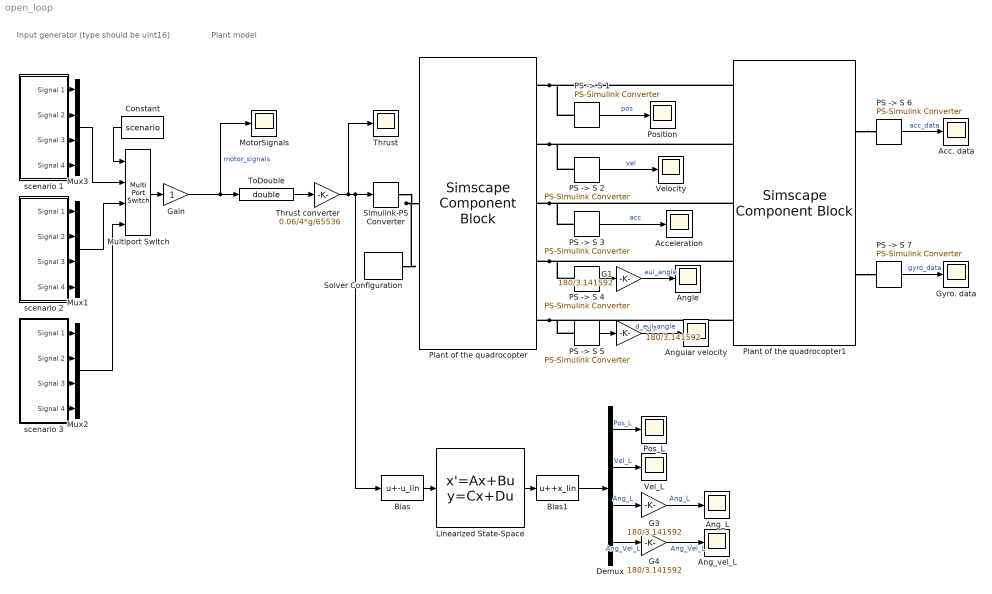
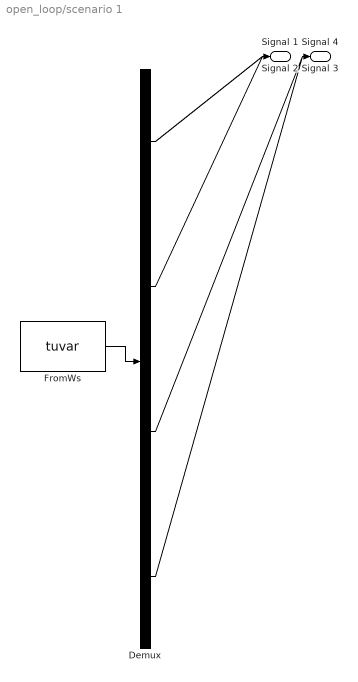
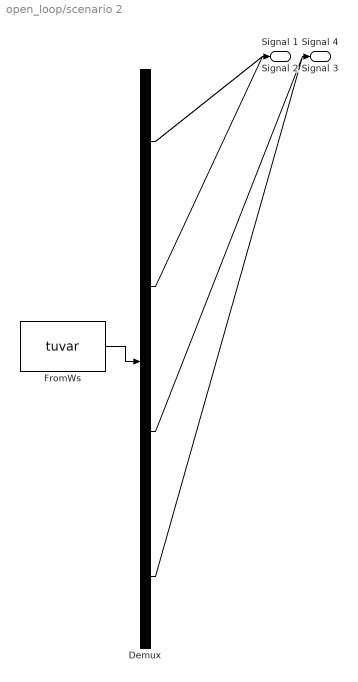
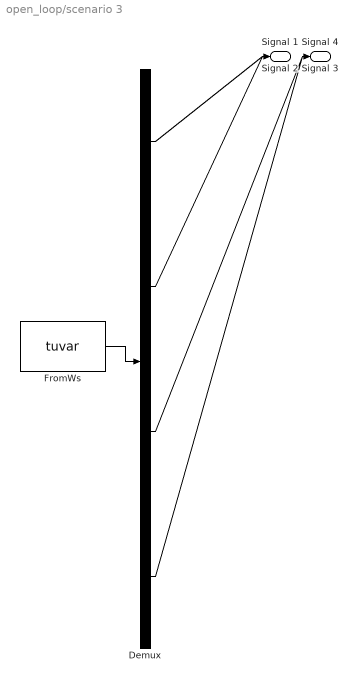
/*
 * open_loop.c
 *
 * Academic License - for use in teaching, academic research, and meeting
 * course requirements at degree granting institutions only.  Not for
 * government, commercial, or other organizational use.
 *
 * Code generation for model "open_loop".
 *
 * Model version              : 1.107
 * Simulink Coder version : 9.1 (R2019a) 23-Nov-2018
 * C source code generated on : Wed May  1 18:27:18 2019
 *
 * Target selection: grt.tlc
 * Note: GRT includes extra infrastructure and instrumentation for prototyping
 * Embedded hardware selection: Intel->x86-64 (Windows64)
 * Code generation objectives: Unspecified
 * Validation result: Not run
 */

#include "open_loop.h"
#include "open_loop_private.h"

/* Block signals (default storage) */
B_open_loop_T open_loop_B;

/* Continuous states */
X_open_loop_T open_loop_X;

/* Mass Matrices */
MassMatrix_open_loop_T open_loop_MassMatrix;

/* Block states (default storage) */
DW_open_loop_T open_loop_DW;

/* Real-time model */
RT_MODEL_open_loop_T open_loop_M_;
RT_MODEL_open_loop_T *const open_loop_M = &open_loop_M_;

/* ForcingFunction for root system: '<Root>' */
void open_loop_forcingfunction(void)
{
  NeslSimulationData *simulationData;
  real_T time;
  boolean_T tmp;
  real_T tmp_0[16];
  int_T tmp_1[5];
  NeuDiagnosticManager *diagnosticManager;
  NeuDiagnosticTree *diagnosticTree;
  char *msg;
  int_T is;
  int_T ci;
  XDot_open_loop_T *_rtXdot;
  _rtXdot = ((XDot_open_loop_T *) open_loop_M->derivs);

  /* ForcingFunction for SimscapeExecutionBlock: '<S21>/STATE_1' */
  simulationData = (NeslSimulationData *)open_loop_DW.STATE_1_SimData;
  time = open_loop_M->Timing.t[0];
  simulationData->mData->mTime.mN = 1;
  simulationData->mData->mTime.mX = &time;
  simulationData->mData->mContStates.mN = 110;
  simulationData->mData->mContStates.mX =
    &open_loop_X.open_loopPlant_of_the_quadrocop[0];
  simulationData->mData->mDiscStates.mN = 0;
  simulationData->mData->mDiscStates.mX = &open_loop_DW.STATE_1_Discrete;
  simulationData->mData->mModeVector.mN = 5;
  simulationData->mData->mModeVector.mX = &open_loop_DW.STATE_1_Modes[0];
  tmp = false;
  simulationData->mData->mFoundZcEvents = tmp;
  simulationData->mData->mIsMajorTimeStep = rtmIsMajorTimeStep(open_loop_M);
  tmp = false;
  simulationData->mData->mIsSolverAssertCheck = tmp;
  simulationData->mData->mIsSolverCheckingCIC = false;
  tmp = rtsiIsSolverComputingJacobian(&open_loop_M->solverInfo);
  simulationData->mData->mIsComputingJacobian = tmp;
  simulationData->mData->mIsEvaluatingF0 = false;
  simulationData->mData->mIsSolverRequestingReset = false;
  tmp_1[0] = 0;
  tmp_0[0] = open_loop_B.INPUT_1_1_1[0];
  tmp_0[1] = open_loop_B.INPUT_1_1_1[1];
  tmp_0[2] = open_loop_B.INPUT_1_1_1[2];
  tmp_0[3] = open_loop_B.INPUT_1_1_1[3];
  tmp_1[1] = 4;
  tmp_0[4] = open_loop_B.INPUT_1_1_2[0];
  tmp_0[5] = open_loop_B.INPUT_1_1_2[1];
  tmp_0[6] = open_loop_B.INPUT_1_1_2[2];
  tmp_0[7] = open_loop_B.INPUT_1_1_2[3];
  tmp_1[2] = 8;
  tmp_0[8] = open_loop_B.INPUT_1_1_3[0];
  tmp_0[9] = open_loop_B.INPUT_1_1_3[1];
  tmp_0[10] = open_loop_B.INPUT_1_1_3[2];
  tmp_0[11] = open_loop_B.INPUT_1_1_3[3];
  tmp_1[3] = 12;
  tmp_0[12] = open_loop_B.INPUT_1_1_4[0];
  tmp_0[13] = open_loop_B.INPUT_1_1_4[1];
  tmp_0[14] = open_loop_B.INPUT_1_1_4[2];
  tmp_0[15] = open_loop_B.INPUT_1_1_4[3];
  tmp_1[4] = 16;
  simulationData->mData->mInputValues.mN = 16;
  simulationData->mData->mInputValues.mX = &tmp_0[0];
  simulationData->mData->mInputOffsets.mN = 5;
  simulationData->mData->mInputOffsets.mX = &tmp_1[0];
  simulationData->mData->mDx.mN = 110;
  simulationData->mData->mDx.mX = &_rtXdot->open_loopPlant_of_the_quadrocop[0];
  diagnosticManager = (NeuDiagnosticManager *)open_loop_DW.STATE_1_DiagMgr;
  diagnosticTree = neu_diagnostic_manager_get_initial_tree(diagnosticManager);
  is = ne_simulator_method((NeslSimulator *)open_loop_DW.STATE_1_Simulator,
    NESL_SIM_FORCINGFUNCTION, simulationData, diagnosticManager);
  if (is != 0) {
    tmp = error_buffer_is_empty(rtmGetErrorStatus(open_loop_M));
    if (tmp) {
      msg = rtw_diagnostics_msg(diagnosticTree);
      rtmSetErrorStatus(open_loop_M, msg);
    }
  }

  /* End of ForcingFunction for SimscapeExecutionBlock: '<S21>/STATE_1' */

  /* ForcingFunction for StateSpace: '<Root>/Linearized State-Space' */
  for (is = 0; is < 12; is++) {
    _rtXdot->LinearizedStateSpace_CSTATE[is] = 0.0;
    for (ci = 0; ci < 12; ci++) {
      _rtXdot->LinearizedStateSpace_CSTATE[is] += open_loop_P.An[ci * 12 + is] *
        open_loop_X.LinearizedStateSpace_CSTATE[ci];
    }

    _rtXdot->LinearizedStateSpace_CSTATE[is] += open_loop_P.Bn[is] *
      open_loop_B.Bias[0];
    _rtXdot->LinearizedStateSpace_CSTATE[is] += open_loop_P.Bn[12 + is] *
      open_loop_B.Bias[1];
    _rtXdot->LinearizedStateSpace_CSTATE[is] += open_loop_P.Bn[24 + is] *
      open_loop_B.Bias[2];
    _rtXdot->LinearizedStateSpace_CSTATE[is] += open_loop_P.Bn[36 + is] *
      open_loop_B.Bias[3];
  }

  /* End of ForcingFunction for StateSpace: '<Root>/Linearized State-Space' */
}

/* MassMatrix for root system: '<Root>' */
void open_loop_massmatrix(void)
{
  NeslSimulationData *simulationData;
  real_T time;
  boolean_T tmp;
  real_T tmp_0[16];
  int_T tmp_1[5];
  real_T *tmp_2;
  NeuDiagnosticManager *diagnosticManager;
  NeuDiagnosticTree *diagnosticTree;
  int32_T tmp_3;
  char *msg;

  /* MassMatrix for SimscapeExecutionBlock: '<S21>/STATE_1' */
  simulationData = (NeslSimulationData *)open_loop_DW.STATE_1_SimData;
  time = open_loop_M->Timing.t[0];
  simulationData->mData->mTime.mN = 1;
  simulationData->mData->mTime.mX = &time;
  simulationData->mData->mContStates.mN = 110;
  simulationData->mData->mContStates.mX =
    &open_loop_X.open_loopPlant_of_the_quadrocop[0];
  simulationData->mData->mDiscStates.mN = 0;
  simulationData->mData->mDiscStates.mX = &open_loop_DW.STATE_1_Discrete;
  simulationData->mData->mModeVector.mN = 5;
  simulationData->mData->mModeVector.mX = &open_loop_DW.STATE_1_Modes[0];
  tmp = false;
  simulationData->mData->mFoundZcEvents = tmp;
  simulationData->mData->mIsMajorTimeStep = rtmIsMajorTimeStep(open_loop_M);
  tmp = false;
  simulationData->mData->mIsSolverAssertCheck = tmp;
  simulationData->mData->mIsSolverCheckingCIC = false;
  tmp = rtsiIsSolverComputingJacobian(&open_loop_M->solverInfo);
  simulationData->mData->mIsComputingJacobian = tmp;
  simulationData->mData->mIsEvaluatingF0 = false;
  simulationData->mData->mIsSolverRequestingReset = false;
  tmp_1[0] = 0;
  tmp_0[0] = open_loop_B.INPUT_1_1_1[0];
  tmp_0[1] = open_loop_B.INPUT_1_1_1[1];
  tmp_0[2] = open_loop_B.INPUT_1_1_1[2];
  tmp_0[3] = open_loop_B.INPUT_1_1_1[3];
  tmp_1[1] = 4;
  tmp_0[4] = open_loop_B.INPUT_1_1_2[0];
  tmp_0[5] = open_loop_B.INPUT_1_1_2[1];
  tmp_0[6] = open_loop_B.INPUT_1_1_2[2];
  tmp_0[7] = open_loop_B.INPUT_1_1_2[3];
  tmp_1[2] = 8;
  tmp_0[8] = open_loop_B.INPUT_1_1_3[0];
  tmp_0[9] = open_loop_B.INPUT_1_1_3[1];
  tmp_0[10] = open_loop_B.INPUT_1_1_3[2];
  tmp_0[11] = open_loop_B.INPUT_1_1_3[3];
  tmp_1[3] = 12;
  tmp_0[12] = open_loop_B.INPUT_1_1_4[0];
  tmp_0[13] = open_loop_B.INPUT_1_1_4[1];
  tmp_0[14] = open_loop_B.INPUT_1_1_4[2];
  tmp_0[15] = open_loop_B.INPUT_1_1_4[3];
  tmp_1[4] = 16;
  simulationData->mData->mInputValues.mN = 16;
  simulationData->mData->mInputValues.mX = &tmp_0[0];
  simulationData->mData->mInputOffsets.mN = 5;
  simulationData->mData->mInputOffsets.mX = &tmp_1[0];
  tmp_2 = open_loop_MassMatrix.pr;
  tmp_2 = double_pointer_shift(tmp_2, open_loop_DW.STATE_1_MASS_MATRIX_PR);
  simulationData->mData->mMassMatrixPr.mN = 12;
  simulationData->mData->mMassMatrixPr.mX = tmp_2;
  diagnosticManager = (NeuDiagnosticManager *)open_loop_DW.STATE_1_DiagMgr;
  diagnosticTree = neu_diagnostic_manager_get_initial_tree(diagnosticManager);
  tmp_3 = ne_simulator_method((NeslSimulator *)open_loop_DW.STATE_1_Simulator,
    NESL_SIM_MASSMATRIX, simulationData, diagnosticManager);
  if (tmp_3 != 0) {
    tmp = error_buffer_is_empty(rtmGetErrorStatus(open_loop_M));
    if (tmp) {
      msg = rtw_diagnostics_msg(diagnosticTree);
      rtmSetErrorStatus(open_loop_M, msg);
    }
  }

  /* End of MassMatrix for SimscapeExecutionBlock: '<S21>/STATE_1' */
}

void local_evaluateMassMatrix(RTWSolverInfo *si, real_T *Mdest )
{
  /* Refresh global mass matrix */
  open_loop_massmatrix();

  /* Copy the mass matrix from system to the destination, if needed. */
  if (Mdest != rtsiGetSolverMassMatrixPr(si)) {
    real_T *Msrc = rtsiGetSolverMassMatrixPr(si);
    int_T nzmax = rtsiGetSolverMassMatrixNzMax(si);
    (void) memcpy(Mdest, Msrc,
                  (uint_T)nzmax*sizeof(real_T));
  }
}

/* Simplified version of numjac.cpp, for use with RTW. */
void local_numjac( RTWSolverInfo *si, real_T *y, const real_T *Fty, real_T *fac,
                  real_T *dFdy )
{
  /* constants */
  real_T THRESH = 1e-6;
  real_T EPS = 2.2e-16;                /* utGetEps(); */
  real_T BL = pow(EPS, 0.75);
  real_T BU = pow(EPS, 0.25);
  real_T FACMIN = pow(EPS, 0.78);
  real_T FACMAX = 0.1;
  int_T nx = 122;
  real_T *x = rtsiGetContStates(si);
  real_T del;
  real_T difmax;
  real_T FdelRowmax;
  real_T temp;
  real_T Fdiff;
  real_T maybe;
  real_T xscale;
  real_T fscale;
  real_T *p;
  int_T rowmax;
  int_T i,j;
  if (x != y)
    (void) memcpy(x, y,
                  (uint_T)nx*sizeof(real_T));
  rtsiSetSolverComputingJacobian(si,true);
  for (p = dFdy, j = 0; j < nx; j++, p += nx) {
    /* Select an increment del for a difference approximation to
       column j of dFdy.  The vector fac accounts for experience
       gained in previous calls to numjac. */
    xscale = fabs(x[j]);
    if (xscale < THRESH)
      xscale = THRESH;
    temp = (x[j] + fac[j]*xscale);
    del = temp - y[j];
    while (del == 0.0) {
      if (fac[j] < FACMAX) {
        fac[j] *= 100.0;
        if (fac[j] > FACMAX)
          fac[j] = FACMAX;
        temp = (x[j] + fac[j]*xscale);
        del = temp - x[j];
      } else {
        del = THRESH;                  /* thresh is nonzero */
        break;
      }
    }

    /* Keep del pointing into region. */
    if (Fty[j] >= 0.0)
      del = fabs(del);
    else
      del = -fabs(del);

    /* Form a difference approximation to column j of dFdy. */
    temp = x[j];
    x[j] += del;
    open_loop_step();
    rtsiSetdX(si,p);
    open_loop_forcingfunction();
    x[j] = temp;
    difmax = 0.0;
    rowmax = 0;
    FdelRowmax = p[0];
    temp = 1.0 / del;
    for (i = 0; i < nx; i++) {
      Fdiff = p[i] - Fty[i];
      maybe = fabs(Fdiff);
      if (maybe > difmax) {
        difmax = maybe;
        rowmax = i;
        FdelRowmax = p[i];
      }

      p[i] = temp * Fdiff;
    }

    /* Adjust fac for next call to numjac. */
    if (((FdelRowmax != 0.0) && (Fty[rowmax] != 0.0)) || (difmax == 0.0)) {
      fscale = fabs(FdelRowmax);
      if (fscale < fabs(Fty[rowmax]))
        fscale = fabs(Fty[rowmax]);
      if (difmax <= BL*fscale) {
        /* The difference is small, so increase the increment. */
        fac[j] *= 10.0;
        if (fac[j] > FACMAX)
          fac[j] = FACMAX;
      } else if (difmax > BU*fscale) {
        /* The difference is large, so reduce the increment. */
        fac[j] *= 0.1;
        if (fac[j] < FACMIN)
          fac[j] = FACMIN;
      }
    }
  }

  rtsiSetSolverComputingJacobian(si,false);
}                                      /* end local_numjac */

/*
 * This function updates continuous states using the ODE14x fixed-step
 * solver algorithm
 */
static void rt_ertODEUpdateContinuousStates(RTWSolverInfo *si )
{
  /* Solver Matrices */
  static int_T rt_ODE14x_N[4] = { 12, 8, 6, 4 };

  time_T t0 = rtsiGetT(si);
  time_T t1 = t0;
  time_T h = rtsiGetStepSize(si);
  real_T *x1 = rtsiGetContStates(si);
  int_T order = rtsiGetSolverExtrapolationOrder(si);
  int_T numIter = rtsiGetSolverNumberNewtonIterations(si);
  ODE14X_IntgData *id = (ODE14X_IntgData *)rtsiGetSolverData(si);
  real_T *x0 = id->x0;
  real_T *f0 = id->f0;
  real_T *x1start = id->x1start;
  real_T *f1 = id->f1;
  real_T *Delta = id->Delta;
  real_T *E = id->E;
  real_T *fac = id->fac;
  real_T *dfdx = id->DFDX;
  real_T *W = id->W;
  int_T *pivots = id->pivots;
  real_T *xtmp = id->xtmp;
  real_T *ztmp = id->ztmp;
  int_T *Mpattern_ir = rtsiGetSolverMassMatrixIr(si);
  int_T *Mpattern_jc = rtsiGetSolverMassMatrixJc(si);
  real_T *M = id->M;
  int_T col,row,rowidx;
  int_T *N = &(rt_ODE14x_N[0]);
  int_T i,j,k,iter;
  int_T nx = 122;
  rtsiSetSimTimeStep(si,MINOR_TIME_STEP);

  /* Save the state values at time t in y, we'll use x as ynew. */
  (void) memcpy(x0, x1,
                (uint_T)nx*sizeof(real_T));

  /* Assumes that rtsiSetT and ModelOutputs are up-to-date */
  if (id->isFirstStep) {
    local_evaluateMassMatrix(si,M );
    id->isFirstStep = false;
  }

  /* f0 = f(t,y) */
  rtsiSetdX(si, f0);
  open_loop_forcingfunction();
  local_numjac(si,x0,f0,fac,dfdx );
  for (j = 0; j < order; j++) {
    real_T *p;
    real_T hN = h/N[j];

    /* Get the iteration matrix and solution at t0 */

    /* [L,U] = lu(M - hN*J) */
    (void) memcpy(W, dfdx,
                  (uint_T)nx*nx*sizeof(real_T));
    for (p = W, i = 0; i < nx*nx; i++, p++) {
      *p *= (-hN);
    }

    for (col = 0, p = W; col < nx; col++, p += nx) {
      for (rowidx = Mpattern_jc[col]; rowidx < Mpattern_jc[col+1]; rowidx++) {
        real_T m_row_col = M[rowidx];
        row = Mpattern_ir[rowidx];
        p[row] += m_row_col;
      }
    }

    rt_lu_real(W, nx,
               pivots);

    /* First Newton's iteration at t0. */
    /* rhs = hN*f0 */
    for (i = 0; i < nx; i++) {
      Delta[i] = hN*f0[i];
    }

    /* Delta = (U \ (L \ rhs)) */
    rt_ForwardSubstitutionRR_Dbl(W, Delta,
      f1, nx,
      1, pivots,
      1);
    rt_BackwardSubstitutionRR_Dbl(W+nx*nx-1, f1+nx-1,
      Delta, nx,
      1, 0);

    /* ytmp = y0 + Delta
       ztmp = (ytmp-y0)/h
     */
    (void) memcpy(x1, x0,
                  (uint_T)nx*sizeof(real_T));
    for (i = 0; i < nx; i++) {
      x1[i] += Delta[i];
      ztmp[i] = Delta[i]/hN;
    }

    /* Additional Newton's iterations, if desired.
       for iter = 2:NewtIter
       rhs = hN*feval(odefun,tn,ytmp,extraArgs{:}) - M*(ytmp - yn);
       if statedepM   % only for state dep. Mdel ~= 0
       Mdel = M - feval(massfun,tn,ytmp);
       rhs = rhs + Mdel*ztmp*h;
       end
       Delta = ( U \ ( L \ rhs ) );
       ytmp = ytmp + Delta;
       ztmp = (ytmp - yn)/h
       end
     */
    rtsiSetT(si, t0);
    rtsiSetdX(si, f1);
    for (iter = 1; iter < numIter; iter++) {
      open_loop_step();
      open_loop_forcingfunction();
      for (i = 0; i < nx; i++) {
        Delta[i] = hN*f1[i];
        xtmp[i] = x1[i] - x0[i];
      }

      /* rhs = hN*f(tn,ytmp) - M*(ytmp-yn) */
      for (col = 0; col < nx; col++) {
        for (rowidx = Mpattern_jc[col]; rowidx < Mpattern_jc[col+1]; rowidx++) {
          real_T m_row_col = M[rowidx];
          row = Mpattern_ir[rowidx];
          Delta[row] -= m_row_col*xtmp[col];
        }
      }

      rt_ForwardSubstitutionRR_Dbl(W, Delta,
        f1, nx,
        1, pivots,
        1);
      rt_BackwardSubstitutionRR_Dbl(W+nx*nx-1, f1+nx-1,
        Delta, nx,
        1, 0);

      /* ytmp = ytmp + delta
         ztmp = (ytmp - yn)/h
       */
      for (i = 0; i < nx; i++) {
        x1[i] += Delta[i];
        ztmp[i] = (x1[i] - x0[i])/hN;
      }
    }

    /* Steps from t0+hN to t1 -- subintegration of N(j) steps for extrapolation
       ttmp = t0;
       for i = 2:N(j)
       ttmp = ttmp + hN
       ytmp0 = ytmp;
       for iter = 1:NewtIter
       rhs = (ytmp0 - ytmp) + hN*feval(odefun,ttmp,ytmp,extraArgs{:});
       Delta = ( U \ ( L \ rhs ) );
       ytmp = ytmp + Delta;
       end
       end
     */
    for (k = 1; k < N[j]; k++) {
      t1 = t0 + k*hN;
      (void) memcpy(x1start, x1,
                    (uint_T)nx*sizeof(real_T));
      rtsiSetT(si, t1);
      rtsiSetdX(si, f1);
      for (iter = 0; iter < numIter; iter++) {
        open_loop_step();
        open_loop_forcingfunction();
        if (iter == 0) {
          for (i = 0; i < nx; i++) {
            Delta[i] = hN*f1[i];
          }
        } else {
          for (i = 0; i < nx; i++) {
            Delta[i] = hN*f1[i];
            xtmp[i] = (x1[i]-x1start[i]);
          }

          /* rhs = hN*f(tn,ytmp) - M*(ytmp-yn) */
          for (col = 0; col < nx; col++) {
            for (rowidx = Mpattern_jc[col]; rowidx < Mpattern_jc[col+1]; rowidx
                 ++) {
              real_T m_row_col = M[rowidx];
              row = Mpattern_ir[rowidx];
              Delta[row] -= m_row_col*xtmp[col];
            }
          }
        }

        rt_ForwardSubstitutionRR_Dbl(W, Delta,
          f1, nx,
          1, pivots,
          1);
        rt_BackwardSubstitutionRR_Dbl(W+nx*nx-1, f1+nx-1,
          Delta, nx,
          1, 0);

        /* ytmp = ytmp + Delta
           ztmp = (ytmp - ytmp0)/h
         */
        for (i = 0; i < nx; i++) {
          x1[i] += Delta[i];
          ztmp[i] = (x1[i] - x1start[i])/hN;
        }
      }
    }

    /* Extrapolate to order j
       E(:,j) = ytmp
       for k = j:-1:2
       coef = N(k-1)/(N(j) - N(k-1))
       E(:,k-1) = E(:,k) + coef*( E(:,k) - E(:,k-1) )
       end
     */
    (void) memcpy(&(E[nx*j]), x1,
                  (uint_T)nx*sizeof(real_T));
    for (k = j; k > 0; k--) {
      real_T coef = (real_T)(N[k-1]) / (N[j]-N[k-1]);
      for (i = 0; i < nx; i++) {
        x1[i] = E[nx*k+i] + coef*(E[nx*k+i] - E[nx*(k-1)+i]);
      }

      (void) memcpy(&(E[nx*(k-1)]), x1,
                    (uint_T)nx*sizeof(real_T));
    }
  }

  /* x1 = E(:,1); */
  (void) memcpy(x1, E,
                (uint_T)nx*sizeof(real_T));

  /* t1 = t0 + h; */
  rtsiSetT(si,rtsiGetSolverStopTime(si));
  rtsiSetSimTimeStep(si,MAJOR_TIME_STEP);
}

/* Model step function */
void open_loop_step(void)
{
  /* local block i/o variables */
  real_T rtb_FromWs[4];
  real_T rtb_FromWs_g[4];
  real_T rtb_FromWs_a[4];
  if (rtmIsMajorTimeStep(open_loop_M)) {
    /* set solver stop time */
    if (!(open_loop_M->Timing.clockTick0+1)) {
      rtsiSetSolverStopTime(&open_loop_M->solverInfo,
                            ((open_loop_M->Timing.clockTickH0 + 1) *
        open_loop_M->Timing.stepSize0 * 4294967296.0));
    } else {
      rtsiSetSolverStopTime(&open_loop_M->solverInfo,
                            ((open_loop_M->Timing.clockTick0 + 1) *
        open_loop_M->Timing.stepSize0 + open_loop_M->Timing.clockTickH0 *
        open_loop_M->Timing.stepSize0 * 4294967296.0));
    }
  }                                    /* end MajorTimeStep */

  /* Update absolute time of base rate at minor time step */
  if (rtmIsMinorTimeStep(open_loop_M)) {
    open_loop_M->Timing.t[0] = rtsiGetT(&open_loop_M->solverInfo);
  }

  {
    NeslSimulationData *simulationData;
    real_T time;
    boolean_T tmp;
    real_T tmp_0[16];
    int_T tmp_1[5];
    NeuDiagnosticManager *diagnosticManager;
    NeuDiagnosticTree *diagnosticTree;
    char *msg;
    real_T time_0;
    real_T tmp_2[131];
    int_T tmp_3[6];
    int_T iy;
    int_T ci;
    real_T y;
    boolean_T tmp_4;

    /* FromWorkspace: '<S10>/FromWs' */
    {
      real_T *pDataValues = (real_T *) open_loop_DW.FromWs_PWORK.DataPtr;
      real_T *pTimeValues = (real_T *) open_loop_DW.FromWs_PWORK.TimePtr;
      int_T currTimeIndex = open_loop_DW.FromWs_IWORK.PrevIndex;
      real_T t = open_loop_M->Timing.t[0];

      /* Get index */
      if (t <= pTimeValues[0]) {
        currTimeIndex = 0;
      } else if (t >= pTimeValues[4]) {
        currTimeIndex = 3;
      } else {
        if (t < pTimeValues[currTimeIndex]) {
          while (t < pTimeValues[currTimeIndex]) {
            currTimeIndex--;
          }
        } else {
          while (t >= pTimeValues[currTimeIndex + 1]) {
            currTimeIndex++;
          }
        }
      }

      open_loop_DW.FromWs_IWORK.PrevIndex = currTimeIndex;

      /* Post output */
      {
        real_T t1 = pTimeValues[currTimeIndex];
        real_T t2 = pTimeValues[currTimeIndex + 1];
        if (t1 == t2) {
          if (t < t1) {
            {
              int_T elIdx;
              for (elIdx = 0; elIdx < 4; ++elIdx) {
                (&rtb_FromWs[0])[elIdx] = pDataValues[currTimeIndex];
                pDataValues += 5;
              }
            }
          } else {
            {
              int_T elIdx;
              for (elIdx = 0; elIdx < 4; ++elIdx) {
                (&rtb_FromWs[0])[elIdx] = pDataValues[currTimeIndex + 1];
                pDataValues += 5;
              }
            }
          }
        } else {
          real_T f1 = (t2 - t) / (t2 - t1);
          real_T f2 = 1.0 - f1;
          real_T d1;
          real_T d2;
          int_T TimeIndex= currTimeIndex;

          {
            int_T elIdx;
            for (elIdx = 0; elIdx < 4; ++elIdx) {
              d1 = pDataValues[TimeIndex];
              d2 = pDataValues[TimeIndex + 1];
              (&rtb_FromWs[0])[elIdx] = (real_T) rtInterpolate(d1, d2, f1, f2);
              pDataValues += 5;
            }
          }
        }
      }
    }

    /* FromWorkspace: '<S11>/FromWs' */
    {
      real_T *pDataValues = (real_T *) open_loop_DW.FromWs_PWORK_a.DataPtr;
      real_T *pTimeValues = (real_T *) open_loop_DW.FromWs_PWORK_a.TimePtr;
      int_T currTimeIndex = open_loop_DW.FromWs_IWORK_e.PrevIndex;
      real_T t = open_loop_M->Timing.t[0];

      /* Get index */
      if (t <= pTimeValues[0]) {
        currTimeIndex = 0;
      } else if (t >= pTimeValues[6]) {
        currTimeIndex = 5;
      } else {
        if (t < pTimeValues[currTimeIndex]) {
          while (t < pTimeValues[currTimeIndex]) {
            currTimeIndex--;
          }
        } else {
          while (t >= pTimeValues[currTimeIndex + 1]) {
            currTimeIndex++;
          }
        }
      }

      open_loop_DW.FromWs_IWORK_e.PrevIndex = currTimeIndex;

      /* Post output */
      {
        real_T t1 = pTimeValues[currTimeIndex];
        real_T t2 = pTimeValues[currTimeIndex + 1];
        if (t1 == t2) {
          if (t < t1) {
            {
              int_T elIdx;
              for (elIdx = 0; elIdx < 4; ++elIdx) {
                (&rtb_FromWs_g[0])[elIdx] = pDataValues[currTimeIndex];
                pDataValues += 7;
              }
            }
          } else {
            {
              int_T elIdx;
              for (elIdx = 0; elIdx < 4; ++elIdx) {
                (&rtb_FromWs_g[0])[elIdx] = pDataValues[currTimeIndex + 1];
                pDataValues += 7;
              }
            }
          }
        } else {
          real_T f1 = (t2 - t) / (t2 - t1);
          real_T f2 = 1.0 - f1;
          real_T d1;
          real_T d2;
          int_T TimeIndex= currTimeIndex;

          {
            int_T elIdx;
            for (elIdx = 0; elIdx < 4; ++elIdx) {
              d1 = pDataValues[TimeIndex];
              d2 = pDataValues[TimeIndex + 1];
              (&rtb_FromWs_g[0])[elIdx] = (real_T) rtInterpolate(d1, d2, f1, f2);
              pDataValues += 7;
            }
          }
        }
      }
    }

    /* FromWorkspace: '<S12>/FromWs' */
    {
      real_T *pDataValues = (real_T *) open_loop_DW.FromWs_PWORK_g.DataPtr;
      real_T *pTimeValues = (real_T *) open_loop_DW.FromWs_PWORK_g.TimePtr;
      int_T currTimeIndex = open_loop_DW.FromWs_IWORK_g.PrevIndex;
      real_T t = open_loop_M->Timing.t[0];

      /* Get index */
      if (t <= pTimeValues[0]) {
        currTimeIndex = 0;
      } else if (t >= pTimeValues[1]) {
        currTimeIndex = 0;
      } else {
        if (t < pTimeValues[currTimeIndex]) {
          while (t < pTimeValues[currTimeIndex]) {
            currTimeIndex--;
          }
        } else {
          while (t >= pTimeValues[currTimeIndex + 1]) {
            currTimeIndex++;
          }
        }
      }

      open_loop_DW.FromWs_IWORK_g.PrevIndex = currTimeIndex;

      /* Post output */
      {
        real_T t1 = pTimeValues[currTimeIndex];
        real_T t2 = pTimeValues[currTimeIndex + 1];
        if (t1 == t2) {
          if (t < t1) {
            {
              int_T elIdx;
              for (elIdx = 0; elIdx < 4; ++elIdx) {
                (&rtb_FromWs_a[0])[elIdx] = pDataValues[currTimeIndex];
                pDataValues += 2;
              }
            }
          } else {
            {
              int_T elIdx;
              for (elIdx = 0; elIdx < 4; ++elIdx) {
                (&rtb_FromWs_a[0])[elIdx] = pDataValues[currTimeIndex + 1];
                pDataValues += 2;
              }
            }
          }
        } else {
          real_T f1 = (t2 - t) / (t2 - t1);
          real_T f2 = 1.0 - f1;
          real_T d1;
          real_T d2;
          int_T TimeIndex= currTimeIndex;

          {
            int_T elIdx;
            for (elIdx = 0; elIdx < 4; ++elIdx) {
              d1 = pDataValues[TimeIndex];
              d2 = pDataValues[TimeIndex + 1];
              (&rtb_FromWs_a[0])[elIdx] = (real_T) rtInterpolate(d1, d2, f1, f2);
              pDataValues += 2;
            }
          }
        }
      }
    }

    /* MultiPortSwitch: '<Root>/Multiport Switch' incorporates:
     *  Constant: '<Root>/Constant'
     */
    switch ((int32_T)open_loop_P.scenario) {
     case 1:
      open_loop_B.MultiportSwitch[0] = rtb_FromWs[0];
      open_loop_B.MultiportSwitch[1] = rtb_FromWs[1];
      open_loop_B.MultiportSwitch[2] = rtb_FromWs[2];
      open_loop_B.MultiportSwitch[3] = rtb_FromWs[3];
      break;

     case 2:
      open_loop_B.MultiportSwitch[0] = rtb_FromWs_g[0];
      open_loop_B.MultiportSwitch[1] = rtb_FromWs_g[1];
      open_loop_B.MultiportSwitch[2] = rtb_FromWs_g[2];
      open_loop_B.MultiportSwitch[3] = rtb_FromWs_g[3];
      break;

     default:
      open_loop_B.MultiportSwitch[0] = rtb_FromWs_a[0];
      open_loop_B.MultiportSwitch[1] = rtb_FromWs_a[1];
      open_loop_B.MultiportSwitch[2] = rtb_FromWs_a[2];
      open_loop_B.MultiportSwitch[3] = rtb_FromWs_a[3];
      break;
    }

    /* End of MultiPortSwitch: '<Root>/Multiport Switch' */

    /* Gain: '<Root>/Thrust converter' */
    y = 0.015 * open_loop_P.g / 65536.0;

    /* Gain: '<Root>/Gain' */
    open_loop_B.motor_signals[0] = open_loop_P.Gain_Gain *
      open_loop_B.MultiportSwitch[0];

    /* Gain: '<Root>/Thrust converter' */
    open_loop_B.Thrustconverter[0] = y * open_loop_B.motor_signals[0];

    /* Gain: '<Root>/Gain' */
    open_loop_B.motor_signals[1] = open_loop_P.Gain_Gain *
      open_loop_B.MultiportSwitch[1];

    /* Gain: '<Root>/Thrust converter' */
    open_loop_B.Thrustconverter[1] = y * open_loop_B.motor_signals[1];

    /* Gain: '<Root>/Gain' */
    open_loop_B.motor_signals[2] = open_loop_P.Gain_Gain *
      open_loop_B.MultiportSwitch[2];

    /* Gain: '<Root>/Thrust converter' */
    open_loop_B.Thrustconverter[2] = y * open_loop_B.motor_signals[2];

    /* Gain: '<Root>/Gain' */
    open_loop_B.motor_signals[3] = open_loop_P.Gain_Gain *
      open_loop_B.MultiportSwitch[3];

    /* Gain: '<Root>/Thrust converter' */
    open_loop_B.Thrustconverter[3] = y * open_loop_B.motor_signals[3];

    /* SimscapeInputBlock: '<S21>/INPUT_1_1_1' */
    open_loop_B.INPUT_1_1_1[0] = open_loop_B.Thrustconverter[0];
    open_loop_B.INPUT_1_1_1[1] = 0.0;
    open_loop_B.INPUT_1_1_1[2] = 0.0;
    open_loop_B.INPUT_1_1_1[3] = 0.0;

    /* SimscapeInputBlock: '<S21>/INPUT_1_1_2' */
    open_loop_B.INPUT_1_1_2[0] = open_loop_B.Thrustconverter[1];
    open_loop_B.INPUT_1_1_2[1] = 0.0;
    open_loop_B.INPUT_1_1_2[2] = 0.0;
    open_loop_B.INPUT_1_1_2[3] = 0.0;

    /* SimscapeInputBlock: '<S21>/INPUT_1_1_3' */
    open_loop_B.INPUT_1_1_3[0] = open_loop_B.Thrustconverter[2];
    open_loop_B.INPUT_1_1_3[1] = 0.0;
    open_loop_B.INPUT_1_1_3[2] = 0.0;
    open_loop_B.INPUT_1_1_3[3] = 0.0;

    /* SimscapeInputBlock: '<S21>/INPUT_1_1_4' */
    open_loop_B.INPUT_1_1_4[0] = open_loop_B.Thrustconverter[3];
    open_loop_B.INPUT_1_1_4[1] = 0.0;
    open_loop_B.INPUT_1_1_4[2] = 0.0;
    open_loop_B.INPUT_1_1_4[3] = 0.0;

    /* SimscapeExecutionBlock: '<S21>/STATE_1' incorporates:
     *  SimscapeExecutionBlock: '<S21>/OUTPUT_1_0'
     */
    simulationData = (NeslSimulationData *)open_loop_DW.STATE_1_SimData;
    y = open_loop_M->Timing.t[0];
    time = y;
    simulationData->mData->mTime.mN = 1;
    simulationData->mData->mTime.mX = &time;
    simulationData->mData->mContStates.mN = 110;
    simulationData->mData->mContStates.mX =
      &open_loop_X.open_loopPlant_of_the_quadrocop[0];
    simulationData->mData->mDiscStates.mN = 0;
    simulationData->mData->mDiscStates.mX = &open_loop_DW.STATE_1_Discrete;
    simulationData->mData->mModeVector.mN = 5;
    simulationData->mData->mModeVector.mX = &open_loop_DW.STATE_1_Modes[0];
    tmp = false;
    simulationData->mData->mFoundZcEvents = tmp;
    tmp_4 = rtmIsMajorTimeStep(open_loop_M);
    simulationData->mData->mIsMajorTimeStep = tmp_4;
    tmp = false;
    simulationData->mData->mIsSolverAssertCheck = tmp;
    simulationData->mData->mIsSolverCheckingCIC = false;
    tmp = rtsiIsSolverComputingJacobian(&open_loop_M->solverInfo);
    simulationData->mData->mIsComputingJacobian = tmp;
    simulationData->mData->mIsEvaluatingF0 = false;
    simulationData->mData->mIsSolverRequestingReset = false;
    tmp_1[0] = 0;
    tmp_0[0] = open_loop_B.INPUT_1_1_1[0];
    tmp_0[1] = open_loop_B.INPUT_1_1_1[1];
    tmp_0[2] = open_loop_B.INPUT_1_1_1[2];
    tmp_0[3] = open_loop_B.INPUT_1_1_1[3];
    tmp_1[1] = 4;
    tmp_0[4] = open_loop_B.INPUT_1_1_2[0];
    tmp_0[5] = open_loop_B.INPUT_1_1_2[1];
    tmp_0[6] = open_loop_B.INPUT_1_1_2[2];
    tmp_0[7] = open_loop_B.INPUT_1_1_2[3];
    tmp_1[2] = 8;
    tmp_0[8] = open_loop_B.INPUT_1_1_3[0];
    tmp_0[9] = open_loop_B.INPUT_1_1_3[1];
    tmp_0[10] = open_loop_B.INPUT_1_1_3[2];
    tmp_0[11] = open_loop_B.INPUT_1_1_3[3];
    tmp_1[3] = 12;
    tmp_0[12] = open_loop_B.INPUT_1_1_4[0];
    tmp_0[13] = open_loop_B.INPUT_1_1_4[1];
    tmp_0[14] = open_loop_B.INPUT_1_1_4[2];
    tmp_0[15] = open_loop_B.INPUT_1_1_4[3];
    tmp_1[4] = 16;
    simulationData->mData->mInputValues.mN = 16;
    simulationData->mData->mInputValues.mX = &tmp_0[0];
    simulationData->mData->mInputOffsets.mN = 5;
    simulationData->mData->mInputOffsets.mX = &tmp_1[0];
    simulationData->mData->mOutputs.mN = 115;
    simulationData->mData->mOutputs.mX = &open_loop_B.STATE_1[0];
    simulationData->mData->mSampleHits.mN = 0;
    simulationData->mData->mSampleHits.mX = NULL;
    simulationData->mData->mIsFundamentalSampleHit = false;
    simulationData->mData->mTolerances.mN = 0;
    simulationData->mData->mTolerances.mX = NULL;
    simulationData->mData->mCstateHasChanged = false;
    diagnosticManager = (NeuDiagnosticManager *)open_loop_DW.STATE_1_DiagMgr;
    diagnosticTree = neu_diagnostic_manager_get_initial_tree(diagnosticManager);
    iy = ne_simulator_method((NeslSimulator *)open_loop_DW.STATE_1_Simulator,
      NESL_SIM_OUTPUTS, simulationData, diagnosticManager);
    if (iy != 0) {
      tmp = error_buffer_is_empty(rtmGetErrorStatus(open_loop_M));
      if (tmp) {
        msg = rtw_diagnostics_msg(diagnosticTree);
        rtmSetErrorStatus(open_loop_M, msg);
      }
    }

    /* End of SimscapeExecutionBlock: '<S21>/STATE_1' */

    /* SimscapeExecutionBlock: '<S21>/OUTPUT_1_0' */
    simulationData = (NeslSimulationData *)open_loop_DW.OUTPUT_1_0_SimData;
    time_0 = y;
    simulationData->mData->mTime.mN = 1;
    simulationData->mData->mTime.mX = &time_0;
    simulationData->mData->mContStates.mN = 0;
    simulationData->mData->mContStates.mX = NULL;
    simulationData->mData->mDiscStates.mN = 0;
    simulationData->mData->mDiscStates.mX = &open_loop_DW.OUTPUT_1_0_Discrete;
    simulationData->mData->mModeVector.mN = 0;
    simulationData->mData->mModeVector.mX = &open_loop_DW.OUTPUT_1_0_Modes;
    tmp = false;
    simulationData->mData->mFoundZcEvents = tmp;
    simulationData->mData->mIsMajorTimeStep = tmp_4;
    tmp = false;
    simulationData->mData->mIsSolverAssertCheck = tmp;
    simulationData->mData->mIsSolverCheckingCIC = false;
    simulationData->mData->mIsComputingJacobian = false;
    simulationData->mData->mIsEvaluatingF0 = false;
    simulationData->mData->mIsSolverRequestingReset = false;
    tmp_3[0] = 0;
    tmp_2[0] = open_loop_B.INPUT_1_1_1[0];
    tmp_2[1] = open_loop_B.INPUT_1_1_1[1];
    tmp_2[2] = open_loop_B.INPUT_1_1_1[2];
    tmp_2[3] = open_loop_B.INPUT_1_1_1[3];
    tmp_3[1] = 4;
    tmp_2[4] = open_loop_B.INPUT_1_1_2[0];
    tmp_2[5] = open_loop_B.INPUT_1_1_2[1];
    tmp_2[6] = open_loop_B.INPUT_1_1_2[2];
    tmp_2[7] = open_loop_B.INPUT_1_1_2[3];
    tmp_3[2] = 8;
    tmp_2[8] = open_loop_B.INPUT_1_1_3[0];
    tmp_2[9] = open_loop_B.INPUT_1_1_3[1];
    tmp_2[10] = open_loop_B.INPUT_1_1_3[2];
    tmp_2[11] = open_loop_B.INPUT_1_1_3[3];
    tmp_3[3] = 12;
    tmp_2[12] = open_loop_B.INPUT_1_1_4[0];
    tmp_2[13] = open_loop_B.INPUT_1_1_4[1];
    tmp_2[14] = open_loop_B.INPUT_1_1_4[2];
    tmp_2[15] = open_loop_B.INPUT_1_1_4[3];
    tmp_3[4] = 16;
    memcpy(&tmp_2[16], &open_loop_B.STATE_1[0], 115U * sizeof(real_T));
    tmp_3[5] = 131;
    simulationData->mData->mInputValues.mN = 131;
    simulationData->mData->mInputValues.mX = &tmp_2[0];
    simulationData->mData->mInputOffsets.mN = 6;
    simulationData->mData->mInputOffsets.mX = &tmp_3[0];
    simulationData->mData->mOutputs.mN = 21;
    simulationData->mData->mOutputs.mX = &open_loop_B.OUTPUT_1_0[0];
    simulationData->mData->mSampleHits.mN = 0;
    simulationData->mData->mSampleHits.mX = NULL;
    simulationData->mData->mIsFundamentalSampleHit = false;
    simulationData->mData->mTolerances.mN = 0;
    simulationData->mData->mTolerances.mX = NULL;
    simulationData->mData->mCstateHasChanged = false;
    diagnosticManager = (NeuDiagnosticManager *)open_loop_DW.OUTPUT_1_0_DiagMgr;
    diagnosticTree = neu_diagnostic_manager_get_initial_tree(diagnosticManager);
    iy = ne_simulator_method((NeslSimulator *)open_loop_DW.OUTPUT_1_0_Simulator,
      NESL_SIM_OUTPUTS, simulationData, diagnosticManager);
    if (iy != 0) {
      tmp = error_buffer_is_empty(rtmGetErrorStatus(open_loop_M));
      if (tmp) {
        msg = rtw_diagnostics_msg(diagnosticTree);
        rtmSetErrorStatus(open_loop_M, msg);
      }
    }

    if (rtmIsMajorTimeStep(open_loop_M)) {
    }

    for (iy = 0; iy < 12; iy++) {
      /* StateSpace: '<Root>/Linearized State-Space' */
      open_loop_B.LinearizedStateSpace[iy] = 0.0;
      for (ci = 0; ci < 12; ci++) {
        open_loop_B.LinearizedStateSpace[iy] += open_loop_P.Cn[ci * 12 + iy] *
          open_loop_X.LinearizedStateSpace_CSTATE[ci];
      }

      /* End of StateSpace: '<Root>/Linearized State-Space' */

      /* Bias: '<Root>/Bias1' */
      open_loop_B.Bias1[iy] = open_loop_B.LinearizedStateSpace[iy] +
        open_loop_P.x_lin[iy];
    }

    /* Gain: '<Root>/G3' */
    open_loop_B.Ang_L[0] = open_loop_P.G3_Gain * open_loop_B.Bias1[6];
    open_loop_B.Ang_L[1] = open_loop_P.G3_Gain * open_loop_B.Bias1[7];
    open_loop_B.Ang_L[2] = open_loop_P.G3_Gain * open_loop_B.Bias1[8];
    if (rtmIsMajorTimeStep(open_loop_M)) {
    }

    /* Gain: '<Root>/G4' */
    open_loop_B.Ang_Vel_L[0] = open_loop_P.G4_Gain * open_loop_B.Bias1[9];
    open_loop_B.Ang_Vel_L[1] = open_loop_P.G4_Gain * open_loop_B.Bias1[10];
    open_loop_B.Ang_Vel_L[2] = open_loop_P.G4_Gain * open_loop_B.Bias1[11];
    if (rtmIsMajorTimeStep(open_loop_M)) {
    }

    /* Bias: '<Root>/Bias' */
    open_loop_B.Bias[0] = open_loop_B.Thrustconverter[0] + -open_loop_P.u_lin[0];
    open_loop_B.Bias[1] = open_loop_B.Thrustconverter[1] + -open_loop_P.u_lin[1];
    open_loop_B.Bias[2] = open_loop_B.Thrustconverter[2] + -open_loop_P.u_lin[2];
    open_loop_B.Bias[3] = open_loop_B.Thrustconverter[3] + -open_loop_P.u_lin[3];

    /* Gain: '<Root>/G1' */
    open_loop_B.eul_angle[0] = open_loop_P.G1_Gain * open_loop_B.OUTPUT_1_0[3];
    open_loop_B.eul_angle[1] = open_loop_P.G1_Gain * open_loop_B.OUTPUT_1_0[4];
    open_loop_B.eul_angle[2] = open_loop_P.G1_Gain * open_loop_B.OUTPUT_1_0[5];
    if (rtmIsMajorTimeStep(open_loop_M)) {
    }

    /* Gain: '<Root>/G2' */
    open_loop_B.d_eul_angle[0] = open_loop_P.G2_Gain * open_loop_B.OUTPUT_1_0[6];
    open_loop_B.d_eul_angle[1] = open_loop_P.G2_Gain * open_loop_B.OUTPUT_1_0[7];
    open_loop_B.d_eul_angle[2] = open_loop_P.G2_Gain * open_loop_B.OUTPUT_1_0[8];
    if (rtmIsMajorTimeStep(open_loop_M)) {
    }
  }

  if (rtmIsMajorTimeStep(open_loop_M)) {
    /* Matfile logging */
    rt_UpdateTXYLogVars(open_loop_M->rtwLogInfo, (open_loop_M->Timing.t));
  }                                    /* end MajorTimeStep */

  if (rtmIsMajorTimeStep(open_loop_M)) {
    NeslSimulationData *simulationData;
    real_T time;
    boolean_T tmp;
    real_T tmp_0[16];
    int_T tmp_1[5];
    NeuDiagnosticManager *diagnosticManager;
    NeuDiagnosticTree *diagnosticTree;
    int32_T tmp_2;
    char *msg;

    /* Update for SimscapeExecutionBlock: '<S21>/STATE_1' */
    simulationData = (NeslSimulationData *)open_loop_DW.STATE_1_SimData;
    time = open_loop_M->Timing.t[0];
    simulationData->mData->mTime.mN = 1;
    simulationData->mData->mTime.mX = &time;
    simulationData->mData->mContStates.mN = 110;
    simulationData->mData->mContStates.mX =
      &open_loop_X.open_loopPlant_of_the_quadrocop[0];
    simulationData->mData->mDiscStates.mN = 0;
    simulationData->mData->mDiscStates.mX = &open_loop_DW.STATE_1_Discrete;
    simulationData->mData->mModeVector.mN = 5;
    simulationData->mData->mModeVector.mX = &open_loop_DW.STATE_1_Modes[0];
    tmp = false;
    simulationData->mData->mFoundZcEvents = tmp;
    simulationData->mData->mIsMajorTimeStep = rtmIsMajorTimeStep(open_loop_M);
    tmp = false;
    simulationData->mData->mIsSolverAssertCheck = tmp;
    simulationData->mData->mIsSolverCheckingCIC = false;
    tmp = rtsiIsSolverComputingJacobian(&open_loop_M->solverInfo);
    simulationData->mData->mIsComputingJacobian = tmp;
    simulationData->mData->mIsEvaluatingF0 = false;
    simulationData->mData->mIsSolverRequestingReset = false;
    tmp_1[0] = 0;
    tmp_0[0] = open_loop_B.INPUT_1_1_1[0];
    tmp_0[1] = open_loop_B.INPUT_1_1_1[1];
    tmp_0[2] = open_loop_B.INPUT_1_1_1[2];
    tmp_0[3] = open_loop_B.INPUT_1_1_1[3];
    tmp_1[1] = 4;
    tmp_0[4] = open_loop_B.INPUT_1_1_2[0];
    tmp_0[5] = open_loop_B.INPUT_1_1_2[1];
    tmp_0[6] = open_loop_B.INPUT_1_1_2[2];
    tmp_0[7] = open_loop_B.INPUT_1_1_2[3];
    tmp_1[2] = 8;
    tmp_0[8] = open_loop_B.INPUT_1_1_3[0];
    tmp_0[9] = open_loop_B.INPUT_1_1_3[1];
    tmp_0[10] = open_loop_B.INPUT_1_1_3[2];
    tmp_0[11] = open_loop_B.INPUT_1_1_3[3];
    tmp_1[3] = 12;
    tmp_0[12] = open_loop_B.INPUT_1_1_4[0];
    tmp_0[13] = open_loop_B.INPUT_1_1_4[1];
    tmp_0[14] = open_loop_B.INPUT_1_1_4[2];
    tmp_0[15] = open_loop_B.INPUT_1_1_4[3];
    tmp_1[4] = 16;
    simulationData->mData->mInputValues.mN = 16;
    simulationData->mData->mInputValues.mX = &tmp_0[0];
    simulationData->mData->mInputOffsets.mN = 5;
    simulationData->mData->mInputOffsets.mX = &tmp_1[0];
    diagnosticManager = (NeuDiagnosticManager *)open_loop_DW.STATE_1_DiagMgr;
    diagnosticTree = neu_diagnostic_manager_get_initial_tree(diagnosticManager);
    tmp_2 = ne_simulator_method((NeslSimulator *)open_loop_DW.STATE_1_Simulator,
      NESL_SIM_UPDATE, simulationData, diagnosticManager);
    if (tmp_2 != 0) {
      tmp = error_buffer_is_empty(rtmGetErrorStatus(open_loop_M));
      if (tmp) {
        msg = rtw_diagnostics_msg(diagnosticTree);
        rtmSetErrorStatus(open_loop_M, msg);
      }
    }

    /* End of Update for SimscapeExecutionBlock: '<S21>/STATE_1' */
  }                                    /* end MajorTimeStep */

  if (rtmIsMajorTimeStep(open_loop_M)) {
    /* signal main to stop simulation */
    {                                  /* Sample time: [0.0s, 0.0s] */
      if ((rtmGetTFinal(open_loop_M)!=-1) &&
          !((rtmGetTFinal(open_loop_M)-(((open_loop_M->Timing.clockTick1+
               open_loop_M->Timing.clockTickH1* 4294967296.0)) * 0.01)) >
            (((open_loop_M->Timing.clockTick1+open_loop_M->Timing.clockTickH1*
               4294967296.0)) * 0.01) * (DBL_EPSILON))) {
        rtmSetErrorStatus(open_loop_M, "Simulation finished");
      }
    }

    rt_ertODEUpdateContinuousStates(&open_loop_M->solverInfo);

    /* Update absolute time for base rate */
    /* The "clockTick0" counts the number of times the code of this task has
     * been executed. The absolute time is the multiplication of "clockTick0"
     * and "Timing.stepSize0". Size of "clockTick0" ensures timer will not
     * overflow during the application lifespan selected.
     * Timer of this task consists of two 32 bit unsigned integers.
     * The two integers represent the low bits Timing.clockTick0 and the high bits
     * Timing.clockTickH0. When the low bit overflows to 0, the high bits increment.
     */
    if (!(++open_loop_M->Timing.clockTick0)) {
      ++open_loop_M->Timing.clockTickH0;
    }

    open_loop_M->Timing.t[0] = rtsiGetSolverStopTime(&open_loop_M->solverInfo);

    {
      /* Update absolute timer for sample time: [0.01s, 0.0s] */
      /* The "clockTick1" counts the number of times the code of this task has
       * been executed. The resolution of this integer timer is 0.01, which is the step size
       * of the task. Size of "clockTick1" ensures timer will not overflow during the
       * application lifespan selected.
       * Timer of this task consists of two 32 bit unsigned integers.
       * The two integers represent the low bits Timing.clockTick1 and the high bits
       * Timing.clockTickH1. When the low bit overflows to 0, the high bits increment.
       */
      open_loop_M->Timing.clockTick1++;
      if (!open_loop_M->Timing.clockTick1) {
        open_loop_M->Timing.clockTickH1++;
      }
    }
  }                                    /* end MajorTimeStep */
}
